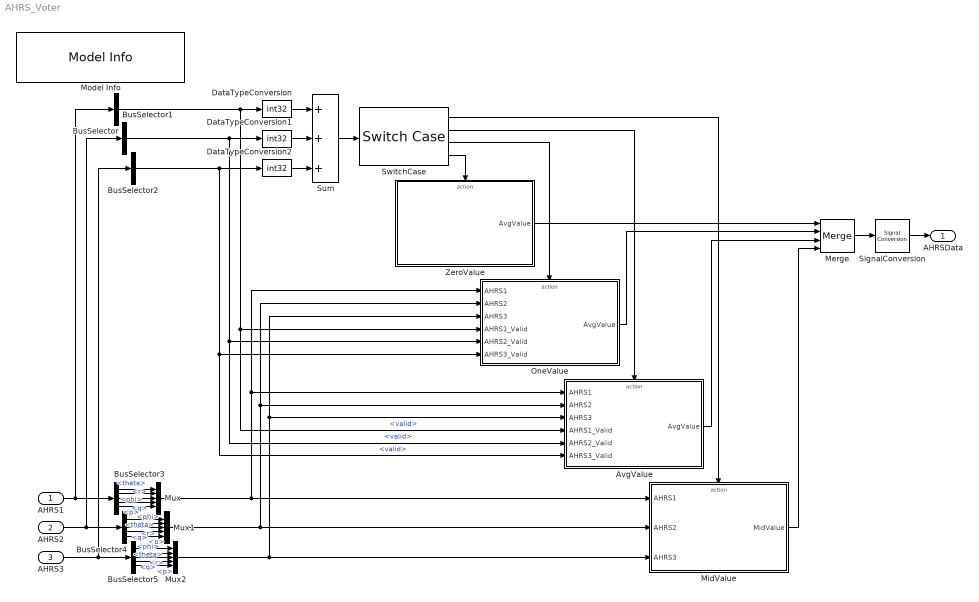
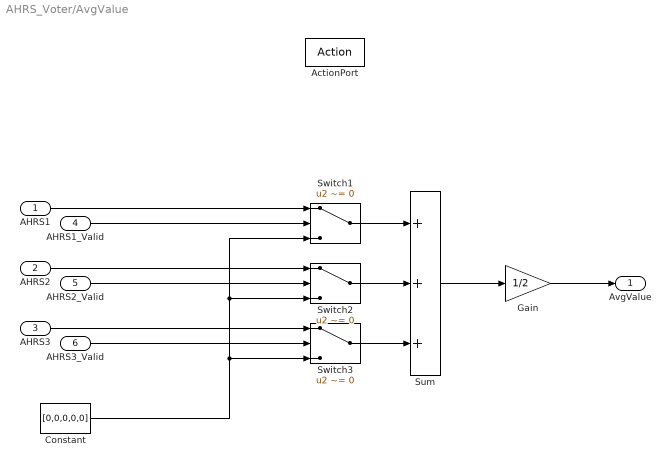
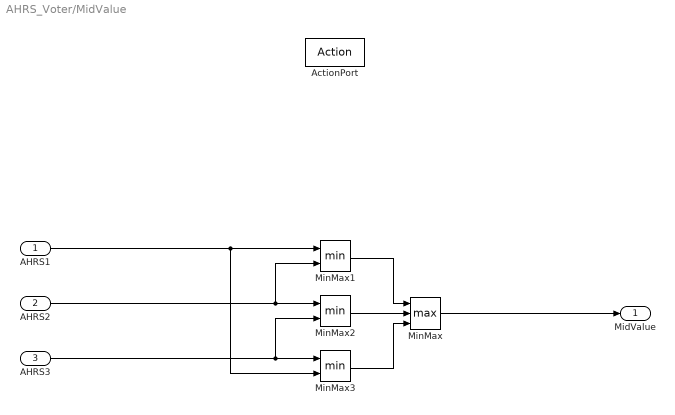
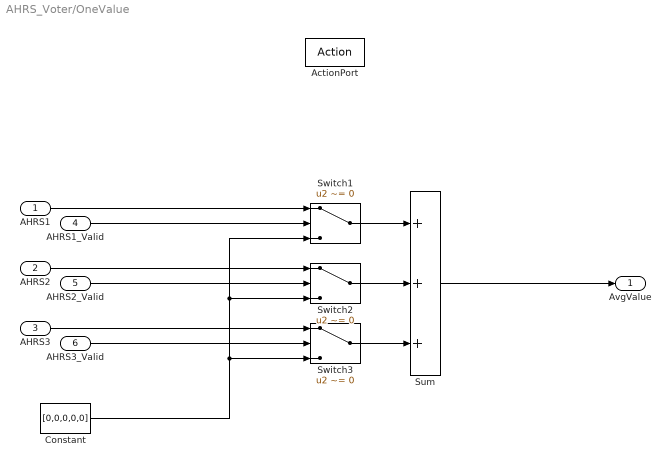
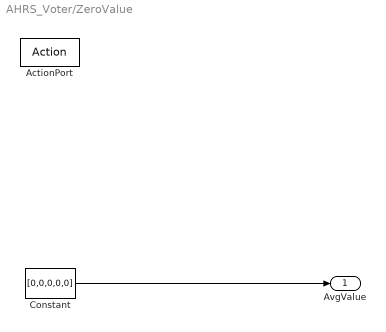
/*
 * File: AHRS_Voter.c
 *
 * Code generated for Simulink model 'AHRS_Voter'.
 *
 * Model version                  : 8.0
 * Simulink Coder version         : 25.1 (R2025a) 21-Nov-2024
 * C/C++ source code generated on : Tue Sep  2 20:03:25 2025
 *
 * Target selection: ert.tlc
 * Embedded hardware selection: ARM Compatible->ARM 10
 * Code generation objectives: Unspecified
 * Validation result: Not run
 */

#include "AHRS_Voter.h"
#include <math.h>
#include <stdint.h>

/* External inputs (root inport signals with default storage) */
ExtU_AHRS_Voter_T AHRS_Voter_U;

/* External outputs (root outports fed by signals with default storage) */
ExtY_AHRS_Voter_T AHRS_Voter_Y;

/* Model step function */
void AHRS_Voter_step(void)
{
  double rtb_Switch1[5];
  double rtb_Switch1_h2ux[5];
  double rtb_Switch2[5];
  double rtb_Switch2_plpr[5];
  double rtb_Switch3[5];
  double rtb_Switch3_nvkn[5];
  int32_t i;
  int32_t i_0;
  int32_t i_1;
  int32_t i_2;
  int32_t i_3;
  int32_t i_4;
  int32_t i_5;
  int32_t i_6;
  int32_t i_7;

  /* SwitchCase: '<Root>/SwitchCase' incorporates:
   *  DataTypeConversion: '<Root>/DataTypeConversion'
   *  DataTypeConversion: '<Root>/DataTypeConversion1'
   *  DataTypeConversion: '<Root>/DataTypeConversion2'
   *  Inport: '<Root>/AHRS1'
   *  Inport: '<Root>/AHRS2'
   *  Inport: '<Root>/AHRS3'
   *  Sum: '<Root>/Sum'
   *
   * Block requirements for '<Root>/SwitchCase':
   *  1. HighLevelReqs.slreqx:15
   *  2. HighLevelReqs.slreqx:16
   *  3. HighLevelReqs.slreqx:17
   *  4. HighLevelReqs.slreqx:18
   *
   * Block requirements for '<Root>/DataTypeConversion':
   *  1. HighLevelReqs.slreqx:13
   *
   * Block requirements for '<Root>/DataTypeConversion1':
   *  1. HighLevelReqs.slreqx:13
   *
   * Block requirements for '<Root>/DataTypeConversion2':
   *  1. HighLevelReqs.slreqx:13
   *
   * Block requirements for '<Root>/Sum':
   *  1. HighLevelReqs.slreqx:13
   */
  switch ((((int32_t)(AHRS_Voter_U.AHRS1.valid ? 1 : 0)) + ((int32_t)
            (AHRS_Voter_U.AHRS2.valid ? 1 : 0))) + ((int32_t)
           (AHRS_Voter_U.AHRS3.valid ? 1 : 0))) {
   case 3:
    /* Outputs for IfAction SubSystem: '<Root>/MidValue' incorporates:
     *  ActionPort: '<S2>/ActionPort'
     *
     * Block requirements for '<Root>/MidValue':
     *  1. HighLevelReqs.slreqx:15
     */
    /* Outport: '<Root>/AHRSData' incorporates:
     *  MinMax: '<S2>/MinMax'
     *  MinMax: '<S2>/MinMax1'
     *  MinMax: '<S2>/MinMax2'
     *  MinMax: '<S2>/MinMax3'
     */
    AHRS_Voter_Y.AHRSData[0] = fmax(fmax(fmin(AHRS_Voter_U.AHRS1.theta,
      AHRS_Voter_U.AHRS2.theta), fmin(AHRS_Voter_U.AHRS2.theta,
      AHRS_Voter_U.AHRS3.theta)), fmin(AHRS_Voter_U.AHRS3.theta,
      AHRS_Voter_U.AHRS1.theta));
    AHRS_Voter_Y.AHRSData[1] = fmax(fmax(fmin(AHRS_Voter_U.AHRS1.phi,
      AHRS_Voter_U.AHRS2.phi), fmin(AHRS_Voter_U.AHRS2.phi,
      AHRS_Voter_U.AHRS3.phi)), fmin(AHRS_Voter_U.AHRS3.phi,
      AHRS_Voter_U.AHRS1.phi));
    AHRS_Voter_Y.AHRSData[2] = fmax(fmax(fmin(AHRS_Voter_U.AHRS1.r,
      AHRS_Voter_U.AHRS2.r), fmin(AHRS_Voter_U.AHRS2.r, AHRS_Voter_U.AHRS3.r)),
      fmin(AHRS_Voter_U.AHRS3.r, AHRS_Voter_U.AHRS1.r));
    AHRS_Voter_Y.AHRSData[3] = fmax(fmax(fmin(AHRS_Voter_U.AHRS1.q,
      AHRS_Voter_U.AHRS2.q), fmin(AHRS_Voter_U.AHRS2.q, AHRS_Voter_U.AHRS3.q)),
      fmin(AHRS_Voter_U.AHRS3.q, AHRS_Voter_U.AHRS1.q));
    AHRS_Voter_Y.AHRSData[4] = fmax(fmax(fmin(AHRS_Voter_U.AHRS1.p,
      AHRS_Voter_U.AHRS2.p), fmin(AHRS_Voter_U.AHRS2.p, AHRS_Voter_U.AHRS3.p)),
      fmin(AHRS_Voter_U.AHRS3.p, AHRS_Voter_U.AHRS1.p));

    /* End of Outputs for SubSystem: '<Root>/MidValue' */
    break;

   case 2:
    /* Outputs for IfAction SubSystem: '<Root>/AvgValue' incorporates:
     *  ActionPort: '<S1>/ActionPort'
     *
     * Block requirements for '<Root>/AvgValue':
     *  1. HighLevelReqs.slreqx:16
     */
    /* Switch: '<S1>/Switch1' */
    if (AHRS_Voter_U.AHRS1.valid) {
      rtb_Switch1_h2ux[0] = AHRS_Voter_U.AHRS1.theta;
      rtb_Switch1_h2ux[1] = AHRS_Voter_U.AHRS1.phi;
      rtb_Switch1_h2ux[2] = AHRS_Voter_U.AHRS1.r;
      rtb_Switch1_h2ux[3] = AHRS_Voter_U.AHRS1.q;
      rtb_Switch1_h2ux[4] = AHRS_Voter_U.AHRS1.p;
    } else {
      for (i_6 = 0; i_6 < 5; i_6 = i_6 + 1) {
        rtb_Switch1_h2ux[i_6] = 0.0;
      }
    }

    /* End of Switch: '<S1>/Switch1' */

    /* Switch: '<S1>/Switch2' */
    if (AHRS_Voter_U.AHRS2.valid) {
      rtb_Switch2_plpr[0] = AHRS_Voter_U.AHRS2.theta;
      rtb_Switch2_plpr[1] = AHRS_Voter_U.AHRS2.phi;
      rtb_Switch2_plpr[2] = AHRS_Voter_U.AHRS2.r;
      rtb_Switch2_plpr[3] = AHRS_Voter_U.AHRS2.q;
      rtb_Switch2_plpr[4] = AHRS_Voter_U.AHRS2.p;
    } else {
      for (i_5 = 0; i_5 < 5; i_5 = i_5 + 1) {
        rtb_Switch2_plpr[i_5] = 0.0;
      }
    }

    /* End of Switch: '<S1>/Switch2' */

    /* Switch: '<S1>/Switch3' */
    if (AHRS_Voter_U.AHRS3.valid) {
      rtb_Switch3_nvkn[0] = AHRS_Voter_U.AHRS3.theta;
      rtb_Switch3_nvkn[1] = AHRS_Voter_U.AHRS3.phi;
      rtb_Switch3_nvkn[2] = AHRS_Voter_U.AHRS3.r;
      rtb_Switch3_nvkn[3] = AHRS_Voter_U.AHRS3.q;
      rtb_Switch3_nvkn[4] = AHRS_Voter_U.AHRS3.p;
    } else {
      for (i_4 = 0; i_4 < 5; i_4 = i_4 + 1) {
        rtb_Switch3_nvkn[i_4] = 0.0;
      }
    }

    /* End of Switch: '<S1>/Switch3' */
    for (i_3 = 0; i_3 < 5; i_3 = i_3 + 1) {
      /* Outport: '<Root>/AHRSData' incorporates:
       *  Gain: '<S1>/Gain'
       *  Sum: '<S1>/Sum'
       */
      AHRS_Voter_Y.AHRSData[i_3] = 0.5 * ((rtb_Switch1_h2ux[i_3] +
        rtb_Switch2_plpr[i_3]) + rtb_Switch3_nvkn[i_3]);
    }

    /* End of Outputs for SubSystem: '<Root>/AvgValue' */
    break;

   case 1:
    /* Outputs for IfAction SubSystem: '<Root>/OneValue' incorporates:
     *  ActionPort: '<S4>/ActionPort'
     *
     * Block requirements for '<Root>/OneValue':
     *  1. HighLevelReqs.slreqx:17
     */
    /* Switch: '<S4>/Switch1' */
    if (AHRS_Voter_U.AHRS1.valid) {
      rtb_Switch1[0] = AHRS_Voter_U.AHRS1.theta;
      rtb_Switch1[1] = AHRS_Voter_U.AHRS1.phi;
      rtb_Switch1[2] = AHRS_Voter_U.AHRS1.r;
      rtb_Switch1[3] = AHRS_Voter_U.AHRS1.q;
      rtb_Switch1[4] = AHRS_Voter_U.AHRS1.p;
    } else {
      for (i_2 = 0; i_2 < 5; i_2 = i_2 + 1) {
        rtb_Switch1[i_2] = 0.0;
      }
    }

    /* End of Switch: '<S4>/Switch1' */

    /* Switch: '<S4>/Switch2' */
    if (AHRS_Voter_U.AHRS2.valid) {
      rtb_Switch2[0] = AHRS_Voter_U.AHRS2.theta;
      rtb_Switch2[1] = AHRS_Voter_U.AHRS2.phi;
      rtb_Switch2[2] = AHRS_Voter_U.AHRS2.r;
      rtb_Switch2[3] = AHRS_Voter_U.AHRS2.q;
      rtb_Switch2[4] = AHRS_Voter_U.AHRS2.p;
    } else {
      for (i_1 = 0; i_1 < 5; i_1 = i_1 + 1) {
        rtb_Switch2[i_1] = 0.0;
      }
    }

    /* End of Switch: '<S4>/Switch2' */

    /* Switch: '<S4>/Switch3' */
    if (AHRS_Voter_U.AHRS3.valid) {
      rtb_Switch3[0] = AHRS_Voter_U.AHRS3.theta;
      rtb_Switch3[1] = AHRS_Voter_U.AHRS3.phi;
      rtb_Switch3[2] = AHRS_Voter_U.AHRS3.r;
      rtb_Switch3[3] = AHRS_Voter_U.AHRS3.q;
      rtb_Switch3[4] = AHRS_Voter_U.AHRS3.p;
    } else {
      for (i_0 = 0; i_0 < 5; i_0 = i_0 + 1) {
        rtb_Switch3[i_0] = 0.0;
      }
    }

    /* End of Switch: '<S4>/Switch3' */
    for (i = 0; i < 5; i = i + 1) {
      /* Outport: '<Root>/AHRSData' incorporates:
       *  Sum: '<S4>/Sum'
       */
      AHRS_Voter_Y.AHRSData[i] = (rtb_Switch1[i] + rtb_Switch2[i]) +
        rtb_Switch3[i];
    }

    /* End of Outputs for SubSystem: '<Root>/OneValue' */
    break;

   default:
    /* Outputs for IfAction SubSystem: '<Root>/ZeroValue' incorporates:
     *  ActionPort: '<S5>/ActionPort'
     *
     * Block requirements for '<Root>/ZeroValue':
     *  1. HighLevelReqs.slreqx:18
     */
    for (i_7 = 0; i_7 < 5; i_7 = i_7 + 1) {
      /* Outport: '<Root>/AHRSData' incorporates:
       *  Constant: '<S5>/Constant'
       */
      AHRS_Voter_Y.AHRSData[i_7] = 0.0;
    }

    /* End of Outputs for SubSystem: '<Root>/ZeroValue' */
    break;
  }

  /* End of SwitchCase: '<Root>/SwitchCase' */
}
